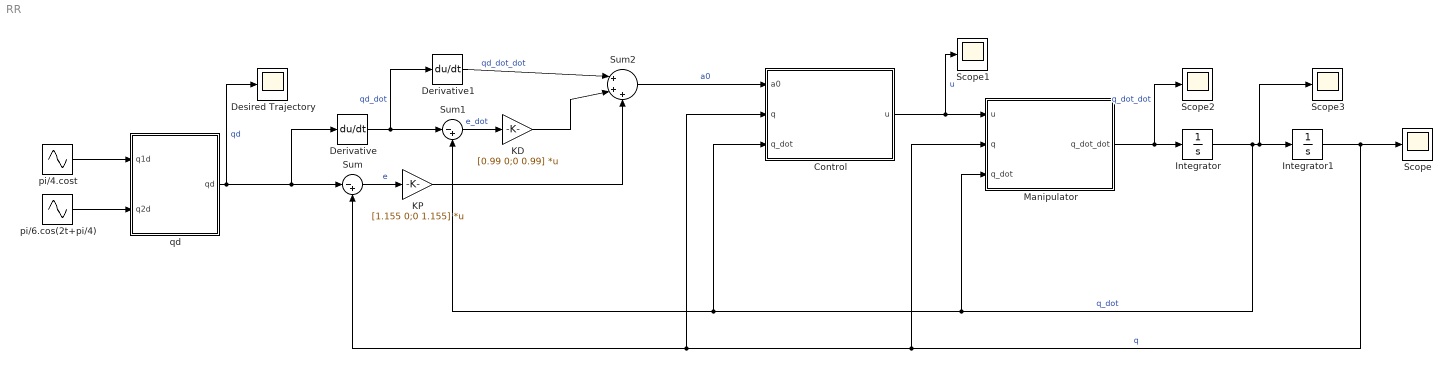
== matlab function RR/Control ==
function u  = Control(a0,q,q_dot)
q1=q(1,1);
q2=q(2,1);
q1_dot=q_dot(1,1);
q2_dot=q_dot(2,1);
m1=0.025;
m2=0.025;
l1=1;
lc1=0.5;
lc2=0.5;
q2=q(2,1);
q1_dot=q_dot(1,1);
q2_dot=q_dot(2,1);
I1=0.0001;
I2=0.0001;
g=9.81;

c11=-m2*l1*lc2*sin(q2)*q2_dot;
c12=-m2*l1*lc2*sin(q2)*(q1_dot+q2_dot);
c21=m2*l1*lc2*(sin(q2))*q1_dot;
c22=0;

C = [c11 c12; c21 c22];

g1= (m1*lc1+m2*l1)*g*cos(q1) + m2*lc2*g*cos(q1+q2);
g2= m2*lc2*g*cos(q1+q2);

G=[g1;g2];

h11= m1*lc1^2 + m2*(l1^2+lc2^2+2*l1*lc2*(cos(q2)))+I1+I2;
h12= m2*(lc2^2 + l1*lc2*(cos(q2)))+ I2;
h21= m2*(lc2^2 + l1*lc2*(cos(q2)))+ I2;
h22= m2*lc2^2 + I2;
H=[h11 h12; h21 h22];
    
u=H*a0+G+C*q_dot;
  
end

== matlab function RR/Manipulator ==
function q_dot_dot  = Manipulator(u,q,q_dot)
q1=q(1,1);
q2=q(2,1);
q1_dot=q_dot(1,1);
q2_dot=q_dot(2,1);
m1=0.025;
m2=0.025;
l1=1;
lc1=0.5;
lc2=0.5;
u1 = u(1,1);
u2 = u(2,1);
q2=q(2,1);
q1_dot=q_dot(1,1);
q2_dot=q_dot(2,1);
I1=0.0001;
I2=0.0001;
g=9.81;

c11=-m2*l1*lc2*sin(q2)*q2_dot;
c12=-m2*l1*lc2*sin(q2)*(q1_dot+q2_dot);
c21=m2*l1*lc2*(sin(q2))*q1_dot;
c22=0;

C = [c11 c12; c21 c22];

g1= (m1*lc1+m2*l1)*g*cos(q1) + m2*lc2*g*cos(q1+q2);
g2= m2*lc2*g*cos(q1+q2);

G=[g1;g2];

h11= m1*lc1^2 + m2*(l1^2+lc2^2+2*l1*lc2*(cos(q2)))+I1+I2;
h12= m2*(lc2^2 + l1*lc2*(cos(q2)))+ I2;
h21= m2*(lc2^2 + l1*lc2*(cos(q2)))+ I2;
h22= m2*lc2^2 + I2;
H=[h11 h12; h21 h22];
    
    tou = [u1 u2]';
    tou_1 = C*[q1_dot q2_dot]'+ G;
    
    q_dot_dot = inv(H)\(tou-tou_1);
    
  
end

== matlab function RR/qd ==
function qd  = qd_calculator(q1d,q2d)

qd=[q1d; q2d];

end

/*
 * RR.c
 *
 * Academic License - for use in teaching, academic research, and meeting
 * course requirements at degree granting institutions only.  Not for
 * government, commercial, or other organizational use.
 *
 * Code generation for model "RR".
 *
 * Model version              : 1.66
 * Simulink Coder version : 9.3 (R2020a) 18-Nov-2019
 * C source code generated on : Mon Oct 12 13:38:19 2020
 *
 * Target selection: rsim.tlc
 * Note: GRT includes extra infrastructure and instrumentation for prototyping
 * Embedded hardware selection: Intel->x86-64 (Windows64)
 * Code generation objectives: Unspecified
 * Validation result: Not run
 */

#include <math.h>
#include "RR.h"
#include "RR_private.h"
#include "RR_dt.h"

/* user code (top of parameter file) */
const int_T gblNumToFiles = 0;
const int_T gblNumFrFiles = 0;
const int_T gblNumFrWksBlocks = 0;
const char *gblSlvrJacPatternFileName = "RR_rsim_rtw\\RR_Jpattern.mat";

/* Root inports information  */
const int_T gblNumRootInportBlks = 0;
const int_T gblNumModelInputs = 0;
extern rtInportTUtable *gblInportTUtables;
extern const char *gblInportFileName;
const int_T gblInportDataTypeIdx[] = { -1 };

const int_T gblInportDims[] = { -1 } ;

const int_T gblInportComplex[] = { -1 };

const int_T gblInportInterpoFlag[] = { -1 };

const int_T gblInportContinuous[] = { -1 };

#include "simstruc.h"
#include "fixedpoint.h"

/* Block signals (default storage) */
B rtB;

/* Continuous states */
X rtX;

/* Block states (default storage) */
DW rtDW;

/* Parent Simstruct */
static SimStruct model_S;
SimStruct *const rtS = &model_S;

/* System initialize for root system: '<Root>' */
void MdlInitialize(void)
{
  /* InitializeConditions for Derivative: '<Root>/Derivative' */
  rtDW.TimeStampA = (rtInf);
  rtDW.TimeStampB = (rtInf);

  /* InitializeConditions for Derivative: '<Root>/Derivative1' */
  rtDW.TimeStampA_j = (rtInf);
  rtDW.TimeStampB_i = (rtInf);

  /* InitializeConditions for Integrator: '<Root>/Integrator1' */
  rtX.Integrator1_CSTATE[0] = rtP.Integrator1_IC[0];

  /* InitializeConditions for Integrator: '<Root>/Integrator' */
  rtX.Integrator_CSTATE[0] = rtP.Integrator_IC[0];

  /* InitializeConditions for Integrator: '<Root>/Integrator1' */
  rtX.Integrator1_CSTATE[1] = rtP.Integrator1_IC[1];

  /* InitializeConditions for Integrator: '<Root>/Integrator' */
  rtX.Integrator_CSTATE[1] = rtP.Integrator_IC[1];
}

/* Start for root system: '<Root>' */
void MdlStart(void)
{
  MdlInitialize();
}

/* Outputs for root system: '<Root>' */
void MdlOutputs(int_T tid)
{
  /* local block i/o variables */
  real_T rtb_u[2];
  real_T (*lastU)[2];
  real_T y[4];
  real_T B_0[2];
  real_T r;
  real_T t;
  int32_T r1;
  int32_T r2;
  real_T H_idx_0;
  real_T rtb_u_tmp;
  real_T rtb_u_tmp_0;
  real_T rtb_u_tmp_1;

  /* Sin: '<Root>/pi//4.cost' incorporates:
   *  Sin: '<Root>/pi//6.cos(2t+pi//4)'
   */
  r = ssGetT(rtS);

  /* MATLAB Function: '<Root>/qd' incorporates:
   *  Sin: '<Root>/pi//4.cost'
   *  Sin: '<Root>/pi//6.cos(2t+pi//4)'
   */
  rtB.qd[0] = sin(rtP.pi4cost_Freq * r + rtP.pi4cost_Phase) * rtP.pi4cost_Amp +
    rtP.pi4cost_Bias;
  rtB.qd[1] = sin(rtP.pi6cos2tpi4_Freq * r + rtP.pi6cos2tpi4_Phase) *
    rtP.pi6cos2tpi4_Amp + rtP.pi6cos2tpi4_Bias;

  /* Integrator: '<Root>/Integrator1' */
  rtB.q[0] = rtX.Integrator1_CSTATE[0];
  rtB.q[1] = rtX.Integrator1_CSTATE[1];

  /* Derivative: '<Root>/Derivative' incorporates:
   *  Derivative: '<Root>/Derivative1'
   */
  r = ssGetT(rtS);
  if ((rtDW.TimeStampA >= r) && (rtDW.TimeStampB >= r)) {
    rtB.qd_dot[0] = 0.0;
    rtB.qd_dot[1] = 0.0;
  } else {
    t = rtDW.TimeStampA;
    lastU = &rtDW.LastUAtTimeA;
    if (rtDW.TimeStampA < rtDW.TimeStampB) {
      if (rtDW.TimeStampB < r) {
        t = rtDW.TimeStampB;
        lastU = &rtDW.LastUAtTimeB;
      }
    } else {
      if (rtDW.TimeStampA >= r) {
        t = rtDW.TimeStampB;
        lastU = &rtDW.LastUAtTimeB;
      }
    }

    t = r - t;
    rtB.qd_dot[0] = (rtB.qd[0] - (*lastU)[0]) / t;
    rtB.qd_dot[1] = (rtB.qd[1] - (*lastU)[1]) / t;
  }

  /* End of Derivative: '<Root>/Derivative' */

  /* Derivative: '<Root>/Derivative1' */
  if ((rtDW.TimeStampA_j >= r) && (rtDW.TimeStampB_i >= r)) {
    rtB.qd_dot_dot[0] = 0.0;
    rtB.qd_dot_dot[1] = 0.0;
  } else {
    t = rtDW.TimeStampA_j;
    lastU = &rtDW.LastUAtTimeA_d;
    if (rtDW.TimeStampA_j < rtDW.TimeStampB_i) {
      if (rtDW.TimeStampB_i < r) {
        t = rtDW.TimeStampB_i;
        lastU = &rtDW.LastUAtTimeB_e;
      }
    } else {
      if (rtDW.TimeStampA_j >= r) {
        t = rtDW.TimeStampB_i;
        lastU = &rtDW.LastUAtTimeB_e;
      }
    }

    t = r - t;
    rtB.qd_dot_dot[0] = (rtB.qd_dot[0] - (*lastU)[0]) / t;
    rtB.qd_dot_dot[1] = (rtB.qd_dot[1] - (*lastU)[1]) / t;
  }

  /* Integrator: '<Root>/Integrator' */
  rtB.q_dot[0] = rtX.Integrator_CSTATE[0];

  /* Sum: '<Root>/Sum1' */
  rtB.e_dot[0] = rtB.q_dot[0] - rtB.qd_dot[0];

  /* Integrator: '<Root>/Integrator' */
  rtB.q_dot[1] = rtX.Integrator_CSTATE[1];

  /* Sum: '<Root>/Sum1' */
  rtB.e_dot[1] = rtB.q_dot[1] - rtB.qd_dot[1];

  /* Gain: '<Root>/KD' */
  rtB.KD[0] = 0.0;
  rtB.KD[0] += rtP.KD_Gain[0] * rtB.e_dot[0];
  rtB.KD[0] += rtP.KD_Gain[2] * rtB.e_dot[1];

  /* Sum: '<Root>/Sum' */
  rtB.e[0] = rtB.q[0] - rtB.qd[0];

  /* Gain: '<Root>/KD' */
  rtB.KD[1] = 0.0;
  rtB.KD[1] += rtP.KD_Gain[1] * rtB.e_dot[0];
  rtB.KD[1] += rtP.KD_Gain[3] * rtB.e_dot[1];

  /* Sum: '<Root>/Sum' */
  rtB.e[1] = rtB.q[1] - rtB.qd[1];

  /* Gain: '<Root>/KP' */
  rtB.KP[0] = 0.0;
  rtB.KP[0] += rtP.KP_Gain[0] * rtB.e[0];
  rtB.KP[0] += rtP.KP_Gain[2] * rtB.e[1];

  /* Sum: '<Root>/Sum2' */
  rtB.a0[0] = (rtB.qd_dot_dot[0] + rtB.KD[0]) + rtB.KP[0];

  /* Gain: '<Root>/KP' */
  rtB.KP[1] = 0.0;
  rtB.KP[1] += rtP.KP_Gain[1] * rtB.e[0];
  rtB.KP[1] += rtP.KP_Gain[3] * rtB.e[1];

  /* Sum: '<Root>/Sum2' */
  rtB.a0[1] = (rtB.qd_dot_dot[1] + rtB.KD[1]) + rtB.KP[1];

  /* MATLAB Function: '<Root>/Control' incorporates:
   *  MATLAB Function: '<Root>/Manipulator'
   */
  r = cos(rtB.q[1]);
  t = sin(rtB.q[1]);
  rtb_u_tmp = cos(rtB.q[0] + rtB.q[1]) * 0.12262500000000001;
  rtb_u_tmp_1 = rtb_u_tmp + 0.36787500000000006 * cos(rtB.q[0]);
  rtb_u[0] = ((((((r + 1.25) * 0.025 + 0.00625) + 0.0001) + 0.0001) * rtB.a0[0]
               + ((0.5 * r + 0.25) * 0.025 + 0.0001) * rtB.a0[1]) + rtb_u_tmp_1)
    + (-0.0125 * t * rtB.q_dot[1] * rtB.q_dot[0] + -0.0125 * sin(rtB.q[1]) *
       (rtB.q_dot[0] + rtB.q_dot[1]) * rtB.q_dot[1]);
  rtb_u_tmp_0 = (0.5 * cos(rtB.q[1]) + 0.25) * 0.025 + 0.0001;
  rtb_u[1] = ((rtb_u_tmp_0 * rtB.a0[0] + 0.0063500000000000006 * rtB.a0[1]) +
              rtb_u_tmp) + (0.0125 * t * rtB.q_dot[0] * rtB.q_dot[0] + 0.0 *
    rtB.q_dot[1]);

  /* MATLAB Function: '<Root>/Manipulator' */
  H_idx_0 = (((cos(rtB.q[1]) + 1.25) * 0.025 + 0.00625) + 0.0001) + 0.0001;
  if (fabs(rtb_u_tmp_0) > H_idx_0) {
    r = H_idx_0 / rtb_u_tmp_0;
    t = 1.0 / (r * 0.0063500000000000006 - rtb_u_tmp_0);
    y[0] = 0.0063500000000000006 / rtb_u_tmp_0 * t;
    y[1] = -t;
    y[2] = -rtb_u_tmp_0 / rtb_u_tmp_0 * t;
    y[3] = r * t;
  } else {
    r = rtb_u_tmp_0 / H_idx_0;
    t = 1.0 / (0.0063500000000000006 - r * rtb_u_tmp_0);
    y[0] = 0.0063500000000000006 / H_idx_0 * t;
    y[1] = -r * t;
    y[2] = -rtb_u_tmp_0 / H_idx_0 * t;
    y[3] = t;
  }

  B_0[0] = rtb_u[0] - ((-0.0125 * sin(rtB.q[1]) * rtB.q_dot[1] * rtB.q_dot[0] +
                        -0.0125 * sin(rtB.q[1]) * (rtB.q_dot[0] + rtB.q_dot[1]) *
                        rtB.q_dot[1]) + rtb_u_tmp_1);
  B_0[1] = rtb_u[1] - ((0.0125 * sin(rtB.q[1]) * rtB.q_dot[0] * rtB.q_dot[0] +
                        0.0 * rtB.q_dot[1]) + rtb_u_tmp);
  if (fabs(y[1]) > fabs(y[0])) {
    r1 = 1;
    r2 = 0;
  } else {
    r1 = 0;
    r2 = 1;
  }

  r = y[r2] / y[r1];
  t = y[r1 + 2];
  rtB.q_dot_dot[1] = (B_0[r2] - B_0[r1] * r) / (y[r2 + 2] - t * r);
  rtB.q_dot_dot[0] = (B_0[r1] - t * rtB.q_dot_dot[1]) / y[r1];
  UNUSED_PARAMETER(tid);
}

/* Update for root system: '<Root>' */
void MdlUpdate(int_T tid)
{
  real_T (*lastU)[2];

  /* Update for Derivative: '<Root>/Derivative' */
  if (rtDW.TimeStampA == (rtInf)) {
    rtDW.TimeStampA = ssGetT(rtS);
    lastU = &rtDW.LastUAtTimeA;
  } else if (rtDW.TimeStampB == (rtInf)) {
    rtDW.TimeStampB = ssGetT(rtS);
    lastU = &rtDW.LastUAtTimeB;
  } else if (rtDW.TimeStampA < rtDW.TimeStampB) {
    rtDW.TimeStampA = ssGetT(rtS);
    lastU = &rtDW.LastUAtTimeA;
  } else {
    rtDW.TimeStampB = ssGetT(rtS);
    lastU = &rtDW.LastUAtTimeB;
  }

  (*lastU)[0] = rtB.qd[0];
  (*lastU)[1] = rtB.qd[1];

  /* End of Update for Derivative: '<Root>/Derivative' */

  /* Update for Derivative: '<Root>/Derivative1' */
  if (rtDW.TimeStampA_j == (rtInf)) {
    rtDW.TimeStampA_j = ssGetT(rtS);
    lastU = &rtDW.LastUAtTimeA_d;
  } else if (rtDW.TimeStampB_i == (rtInf)) {
    rtDW.TimeStampB_i = ssGetT(rtS);
    lastU = &rtDW.LastUAtTimeB_e;
  } else if (rtDW.TimeStampA_j < rtDW.TimeStampB_i) {
    rtDW.TimeStampA_j = ssGetT(rtS);
    lastU = &rtDW.LastUAtTimeA_d;
  } else {
    rtDW.TimeStampB_i = ssGetT(rtS);
    lastU = &rtDW.LastUAtTimeB_e;
  }

  (*lastU)[0] = rtB.qd_dot[0];
  (*lastU)[1] = rtB.qd_dot[1];

  /* End of Update for Derivative: '<Root>/Derivative1' */
  UNUSED_PARAMETER(tid);
}
